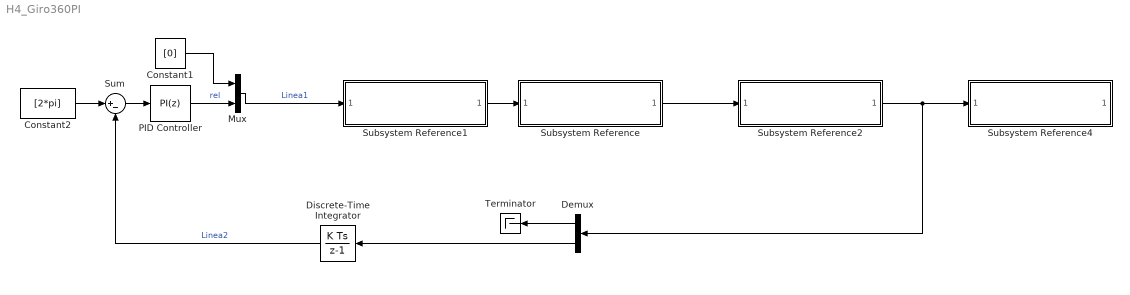
/*
 * Academic License - for use in teaching, academic research, and meeting
 * course requirements at degree granting institutions only.  Not for
 * government, commercial, or other organizational use.
 *
 * File: H4_Giro360PI.c
 *
 * Code generated for Simulink model 'H4_Giro360PI'.
 *
 * Model version                  : 1.25
 * Simulink Coder version         : 23.2 (R2023b) 01-Aug-2023
 * C/C++ source code generated on : Thu Dec 21 16:29:14 2023
 *
 * Target selection: ert.tlc
 * Embedded hardware selection: Atmel->AVR
 * Code generation objectives: Unspecified
 * Validation result: Not run
 */

#include "H4_Giro360PI.h"
#include <math.h>
#include "rt_nonfinite.h"
#include "rtwtypes.h"
#include "H4_Giro360PI_private.h"

/* Block states (default storage) */
DW_H4_Giro360PI_T H4_Giro360PI_DW;

/* Real-time model */
static RT_MODEL_H4_Giro360PI_T H4_Giro360PI_M_;
RT_MODEL_H4_Giro360PI_T *const H4_Giro360PI_M = &H4_Giro360PI_M_;

/* Model step function */
void H4_Giro360PI_step(void)
{
  real_T rtb_Gain_idx_0;
  real_T rtb_Gain_idx_1;
  real_T rtb_Sum;
  real_T rtb_TSamp_idx_0;
  real_T rtb_TSamp_idx_1;
  int32_T rtb_Encoder1_0;
  int32_T rtb_Encoder_0;
  int16_T rtb_DataTypeConversion_idx_0;
  int16_T rtb_DataTypeConversion_idx_1;
  int16_T y;

  /* Sum: '<Root>/Sum' incorporates:
   *  Constant: '<Root>/Constant2'
   *  DiscreteIntegrator: '<Root>/Discrete-Time Integrator'
   */
  rtb_Sum = H4_Giro360PI_P.Constant2_Value -
    H4_Giro360PI_DW.DiscreteTimeIntegrator_DSTATE;

  /* Sum: '<S46>/Sum' incorporates:
   *  DiscreteIntegrator: '<S37>/Integrator'
   *  Gain: '<S42>/Proportional Gain'
   */
  rtb_TSamp_idx_0 = H4_Giro360PI_P.PIDController_P * rtb_Sum +
    H4_Giro360PI_DW.Integrator_DSTATE;

  /* Saturate: '<S44>/Saturation' */
  if (rtb_TSamp_idx_0 > H4_Giro360PI_P.PIDController_UpperSaturationLi) {
    rtb_TSamp_idx_0 = H4_Giro360PI_P.PIDController_UpperSaturationLi;
  } else if (rtb_TSamp_idx_0 < H4_Giro360PI_P.PIDController_LowerSaturationLi) {
    rtb_TSamp_idx_0 = H4_Giro360PI_P.PIDController_LowerSaturationLi;
  }

  /* Sum: '<S2>/Sum' incorporates:
   *  Constant: '<Root>/Constant1'
   *  Constant: '<S3>/Constant'
   *  Memory: '<S2>/Memory'
   *  Product: '<S3>/Matrix Multiply'
   *  Saturate: '<S44>/Saturation'
   */
  rtb_Gain_idx_0 = (H4_Giro360PI_P.Constant_Value[0] *
                    H4_Giro360PI_P.Constant1_Value +
                    H4_Giro360PI_P.Constant_Value[2] * rtb_TSamp_idx_0) -
    H4_Giro360PI_DW.Memory_PreviousInput[0];
  rtb_Gain_idx_1 = (H4_Giro360PI_P.Constant_Value[1] *
                    H4_Giro360PI_P.Constant1_Value +
                    H4_Giro360PI_P.Constant_Value[3] * rtb_TSamp_idx_0) -
    H4_Giro360PI_DW.Memory_PreviousInput[1];

  /* Sum: '<S146>/Sum' incorporates:
   *  DiscreteIntegrator: '<S137>/Integrator'
   *  Gain: '<S142>/Proportional Gain'
   */
  rtb_TSamp_idx_0 = H4_Giro360PI_P.PIDController2_P * rtb_Gain_idx_0 +
    H4_Giro360PI_DW.Integrator_DSTATE_he;

  /* Saturate: '<S144>/Saturation' */
  if (rtb_TSamp_idx_0 > H4_Giro360PI_P.PIDController2_UpperSaturationL) {
    rtb_TSamp_idx_0 = H4_Giro360PI_P.PIDController2_UpperSaturationL;
  } else if (rtb_TSamp_idx_0 < H4_Giro360PI_P.PIDController2_LowerSaturationL) {
    rtb_TSamp_idx_0 = H4_Giro360PI_P.PIDController2_LowerSaturationL;
  }

  /* DataTypeConversion: '<S55>/Data Type Conversion' incorporates:
   *  Saturate: '<S144>/Saturation'
   */
  rtb_TSamp_idx_0 = floor(rtb_TSamp_idx_0);
  if (rtIsNaN(rtb_TSamp_idx_0) || rtIsInf(rtb_TSamp_idx_0)) {
    rtb_TSamp_idx_0 = 0.0;
  } else {
    rtb_TSamp_idx_0 = fmod(rtb_TSamp_idx_0, 65536.0);
  }

  rtb_DataTypeConversion_idx_0 = rtb_TSamp_idx_0 < 0.0 ? -(int16_T)(uint16_T)
    -rtb_TSamp_idx_0 : (int16_T)(uint16_T)rtb_TSamp_idx_0;

  /* Sum: '<S98>/Sum' incorporates:
   *  DiscreteIntegrator: '<S89>/Integrator'
   *  Gain: '<S94>/Proportional Gain'
   */
  rtb_TSamp_idx_0 = H4_Giro360PI_P.PIDController1_P * rtb_Gain_idx_1 +
    H4_Giro360PI_DW.Integrator_DSTATE_h;

  /* Saturate: '<S96>/Saturation' */
  if (rtb_TSamp_idx_0 > H4_Giro360PI_P.PIDController1_UpperSaturationL) {
    rtb_TSamp_idx_0 = H4_Giro360PI_P.PIDController1_UpperSaturationL;
  } else if (rtb_TSamp_idx_0 < H4_Giro360PI_P.PIDController1_LowerSaturationL) {
    rtb_TSamp_idx_0 = H4_Giro360PI_P.PIDController1_LowerSaturationL;
  }

  /* DataTypeConversion: '<S55>/Data Type Conversion' incorporates:
   *  Saturate: '<S96>/Saturation'
   */
  rtb_TSamp_idx_0 = floor(rtb_TSamp_idx_0);
  if (rtIsNaN(rtb_TSamp_idx_0) || rtIsInf(rtb_TSamp_idx_0)) {
    rtb_TSamp_idx_0 = 0.0;
  } else {
    rtb_TSamp_idx_0 = fmod(rtb_TSamp_idx_0, 65536.0);
  }

  rtb_DataTypeConversion_idx_1 = rtb_TSamp_idx_0 < 0.0 ? -(int16_T)(uint16_T)
    -rtb_TSamp_idx_0 : (int16_T)(uint16_T)rtb_TSamp_idx_0;

  /* MATLABSystem: '<S156>/Adelante_der' */
  H4_Giro360PI_DW.obj_b.PWMDriverObj.MW_PWM_HANDLE = MW_PWM_GetHandle(12UL);

  /* Saturate: '<S156>/Saturation2' */
  if (rtb_DataTypeConversion_idx_1 > H4_Giro360PI_P.Saturation2_UpperSat) {
    y = H4_Giro360PI_P.Saturation2_UpperSat;
  } else if (rtb_DataTypeConversion_idx_1 < H4_Giro360PI_P.Saturation2_LowerSat)
  {
    y = H4_Giro360PI_P.Saturation2_LowerSat;
  } else {
    y = rtb_DataTypeConversion_idx_1;
  }

  /* End of Saturate: '<S156>/Saturation2' */

  /* Start for MATLABSystem: '<S156>/Adelante_der' */
  if (y > 255) {
    y = 255;
  }

  if (y < 0) {
    y = 0;
  }

  /* MATLABSystem: '<S156>/Adelante_der' */
  MW_PWM_SetDutyCycle(H4_Giro360PI_DW.obj_b.PWMDriverObj.MW_PWM_HANDLE, (real_T)
                      y);

  /* MATLABSystem: '<S156>/Adelante_izq' */
  H4_Giro360PI_DW.obj_j.PWMDriverObj.MW_PWM_HANDLE = MW_PWM_GetHandle(9UL);

  /* Saturate: '<S156>/Saturation4' */
  if (rtb_DataTypeConversion_idx_0 > H4_Giro360PI_P.Saturation4_UpperSat) {
    y = H4_Giro360PI_P.Saturation4_UpperSat;
  } else if (rtb_DataTypeConversion_idx_0 < H4_Giro360PI_P.Saturation4_LowerSat)
  {
    y = H4_Giro360PI_P.Saturation4_LowerSat;
  } else {
    y = rtb_DataTypeConversion_idx_0;
  }

  /* End of Saturate: '<S156>/Saturation4' */

  /* Abs: '<S156>/Abs2' */
  if (y < 0) {
    y = -y;
  }

  /* End of Abs: '<S156>/Abs2' */

  /* Start for MATLABSystem: '<S156>/Adelante_izq' */
  if (y > 255) {
    y = 255;
  }

  if (y < 0) {
    y = 0;
  }

  /* MATLABSystem: '<S156>/Adelante_izq' */
  MW_PWM_SetDutyCycle(H4_Giro360PI_DW.obj_j.PWMDriverObj.MW_PWM_HANDLE, (real_T)
                      y);

  /* MATLABSystem: '<S156>/Atras_der' */
  H4_Giro360PI_DW.obj_e.PWMDriverObj.MW_PWM_HANDLE = MW_PWM_GetHandle(11UL);

  /* Saturate: '<S156>/Saturation3' */
  if (rtb_DataTypeConversion_idx_1 > H4_Giro360PI_P.Saturation3_UpperSat) {
    y = H4_Giro360PI_P.Saturation3_UpperSat;
  } else if (rtb_DataTypeConversion_idx_1 < H4_Giro360PI_P.Saturation3_LowerSat)
  {
    y = H4_Giro360PI_P.Saturation3_LowerSat;
  } else {
    y = rtb_DataTypeConversion_idx_1;
  }

  /* End of Saturate: '<S156>/Saturation3' */

  /* Abs: '<S156>/Abs1' */
  if (y < 0) {
    y = -y;
  }

  /* End of Abs: '<S156>/Abs1' */

  /* Start for MATLABSystem: '<S156>/Atras_der' */
  if (y > 255) {
    y = 255;
  }

  if (y < 0) {
    y = 0;
  }

  /* MATLABSystem: '<S156>/Atras_der' */
  MW_PWM_SetDutyCycle(H4_Giro360PI_DW.obj_e.PWMDriverObj.MW_PWM_HANDLE, (real_T)
                      y);

  /* MATLABSystem: '<S156>/Atras_izq' */
  H4_Giro360PI_DW.obj_g.PWMDriverObj.MW_PWM_HANDLE = MW_PWM_GetHandle(10UL);

  /* Saturate: '<S156>/Saturation5' */
  if (rtb_DataTypeConversion_idx_0 > H4_Giro360PI_P.Saturation5_UpperSat) {
    y = H4_Giro360PI_P.Saturation5_UpperSat;
  } else if (rtb_DataTypeConversion_idx_0 < H4_Giro360PI_P.Saturation5_LowerSat)
  {
    y = H4_Giro360PI_P.Saturation5_LowerSat;
  } else {
    y = rtb_DataTypeConversion_idx_0;
  }

  /* End of Saturate: '<S156>/Saturation5' */

  /* Start for MATLABSystem: '<S156>/Atras_izq' */
  if (y > 255) {
    y = 255;
  }

  if (y < 0) {
    y = 0;
  }

  /* MATLABSystem: '<S156>/Atras_izq' */
  MW_PWM_SetDutyCycle(H4_Giro360PI_DW.obj_g.PWMDriverObj.MW_PWM_HANDLE, (real_T)
                      y);

  /* MATLABSystem: '<S156>/Digital Output' incorporates:
   *  Constant: '<S158>/Constant'
   *  RelationalOperator: '<S158>/Compare'
   */
  writeDigitalPin(8, (uint8_T)(rtb_DataTypeConversion_idx_0 !=
    H4_Giro360PI_P.Constant_Value_c));

  /* MATLABSystem: '<S156>/Digital Output1' incorporates:
   *  Constant: '<S159>/Constant'
   *  RelationalOperator: '<S159>/Compare'
   */
  writeDigitalPin(13, (uint8_T)(rtb_DataTypeConversion_idx_1 !=
    H4_Giro360PI_P.Constant_Value_d));

  /* MATLABSystem: '<S155>/Encoder' */
  if (H4_Giro360PI_DW.obj_p.SampleTime != H4_Giro360PI_P.Encoder_SampleTime) {
    H4_Giro360PI_DW.obj_p.SampleTime = H4_Giro360PI_P.Encoder_SampleTime;
  }

  if (H4_Giro360PI_DW.obj_p.TunablePropsChanged) {
    H4_Giro360PI_DW.obj_p.TunablePropsChanged = false;
  }

  MW_EncoderRead(H4_Giro360PI_DW.obj_p.Index, &rtb_Encoder_0);

  /* MATLABSystem: '<S155>/Encoder1' */
  if (H4_Giro360PI_DW.obj.SampleTime != H4_Giro360PI_P.Encoder1_SampleTime) {
    H4_Giro360PI_DW.obj.SampleTime = H4_Giro360PI_P.Encoder1_SampleTime;
  }

  if (H4_Giro360PI_DW.obj.TunablePropsChanged) {
    H4_Giro360PI_DW.obj.TunablePropsChanged = false;
  }

  MW_EncoderRead(H4_Giro360PI_DW.obj.Index, &rtb_Encoder1_0);

  /* Gain: '<S155>/Gain' */
  rtb_TSamp_idx_1 = (real_T)H4_Giro360PI_P.Gain_Gain * 1.1368683772161603E-13;

  /* SampleTimeMath: '<S157>/TSamp' incorporates:
   *  Gain: '<S155>/Gain'
   *  MATLABSystem: '<S155>/Encoder'
   *  MATLABSystem: '<S155>/Encoder1'
   *
   * About '<S157>/TSamp':
   *  y = u * K where K = 1 / ( w * Ts )
   */
  rtb_TSamp_idx_0 = rtb_TSamp_idx_1 * (real_T)rtb_Encoder_0 *
    H4_Giro360PI_P.TSamp_WtEt;
  rtb_TSamp_idx_1 = rtb_TSamp_idx_1 * (real_T)rtb_Encoder1_0 *
    H4_Giro360PI_P.TSamp_WtEt;

  /* Gain: '<S154>/Gain1' incorporates:
   *  Sum: '<S157>/Diff'
   *  UnitDelay: '<S157>/UD'
   *
   * Block description for '<S157>/Diff':
   *
   *  Add in CPU
   *
   * Block description for '<S157>/UD':
   *
   *  Store in Global RAM
   */
  H4_Giro360PI_DW.Memory_PreviousInput[0] = (rtb_TSamp_idx_0 -
    H4_Giro360PI_DW.UD_DSTATE[0]) * H4_Giro360PI_P.Gain1_Gain[0];
  H4_Giro360PI_DW.Memory_PreviousInput[1] = (rtb_TSamp_idx_1 -
    H4_Giro360PI_DW.UD_DSTATE[1]) * H4_Giro360PI_P.Gain1_Gain[1];

  /* Update for DiscreteIntegrator: '<S37>/Integrator' incorporates:
   *  Gain: '<S34>/Integral Gain'
   */
  H4_Giro360PI_DW.Integrator_DSTATE += H4_Giro360PI_P.PIDController_I * rtb_Sum *
    H4_Giro360PI_P.Integrator_gainval;

  /* Update for DiscreteIntegrator: '<S89>/Integrator' incorporates:
   *  Gain: '<S86>/Integral Gain'
   */
  H4_Giro360PI_DW.Integrator_DSTATE_h += H4_Giro360PI_P.PIDController1_I *
    rtb_Gain_idx_1 * H4_Giro360PI_P.Integrator_gainval_d;

  /* Update for DiscreteIntegrator: '<S137>/Integrator' incorporates:
   *  Gain: '<S134>/Integral Gain'
   */
  H4_Giro360PI_DW.Integrator_DSTATE_he += H4_Giro360PI_P.PIDController2_I *
    rtb_Gain_idx_0 * H4_Giro360PI_P.Integrator_gainval_i;

  /* Update for UnitDelay: '<S157>/UD'
   *
   * Block description for '<S157>/UD':
   *
   *  Store in Global RAM
   */
  H4_Giro360PI_DW.UD_DSTATE[0] = rtb_TSamp_idx_0;
  H4_Giro360PI_DW.UD_DSTATE[1] = rtb_TSamp_idx_1;

  /* Update for DiscreteIntegrator: '<Root>/Discrete-Time Integrator' incorporates:
   *  Constant: '<S4>/Constant'
   *  Product: '<S4>/Matrix Multiply'
   */
  H4_Giro360PI_DW.DiscreteTimeIntegrator_DSTATE +=
    (H4_Giro360PI_DW.Memory_PreviousInput[0] * H4_Giro360PI_P.Constant_Value_b[1]
     + H4_Giro360PI_DW.Memory_PreviousInput[1] *
     H4_Giro360PI_P.Constant_Value_b[3]) *
    H4_Giro360PI_P.DiscreteTimeIntegrator_gainval;
}
